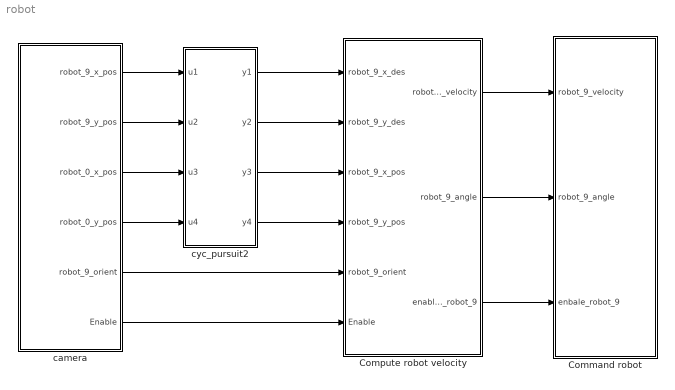
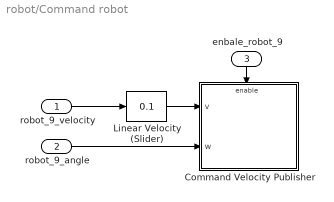
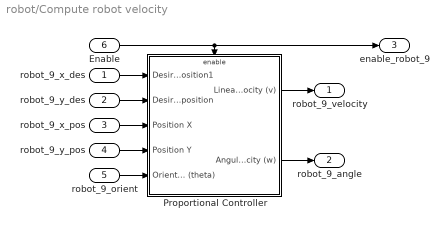
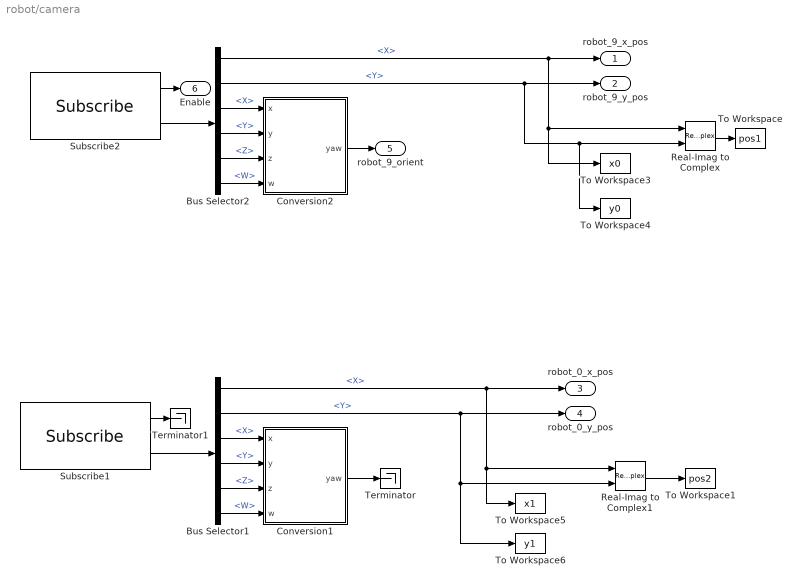
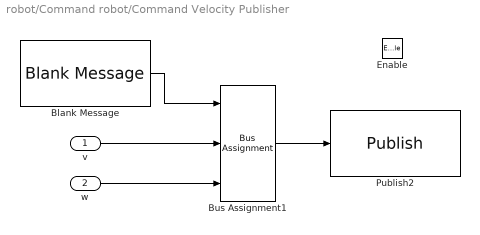
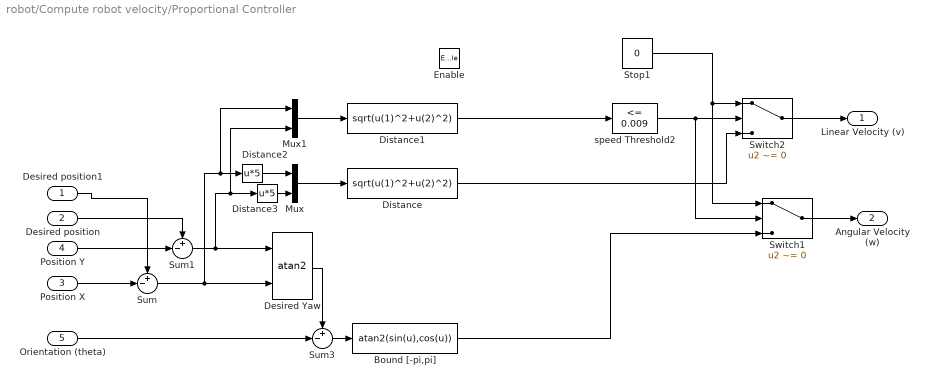
== matlab function robot/cyc_pursuit2 ==
function [y1, y2, y3, y4] = fcn(u1, u2, u3, u4)
%#codegen

y1 = ((1-0.2)*u1+(u3*0.2)+(1.5*0.2));
y2 = ((1-0.2)*u2+(0.2*u4)+(0*0.2));
y3=u1;
y4=u2;




%       y1 = ((1-0.2)*u1+(u3*0.2)+(1.5451*0.2));
%         y2 = ((1-0.2)*u2+(0.2*u4)+(4.7553*0.2));
%         y3 = ((1-0.2)*u3+(u5*0.2)-(4.0451*0.2));
%         y4 = ((1-0.2)*u4+(u6*0.2)+(2.9389*0.2));
%         y5 = ((1-0.2)*u5+(u7*0.2)-(4.0451*0.2));
%         y6 = ((1-0.2)*u6+(u8*0.2)-(2.9389*0.2));
%         y7 = ((1-0.2)*u7+(u9*0.2)+(1.5451*0.2));
%         y8 = ((1-0.2)*u8+(u10*0.2)-(4.7553*0.2));
%         y9 = ((1-0.2)*u9+(u1*0.2)+(5*0.2));
%         y10 = ((1-0.2)*u10+(u2*0.2)+(0*0.2));

== matlab function robot/camera/Conversion1 ==
function yaw  = quat2eul(x,y,z,w)
%#codegen

% Convert the quaternion to a yaw angle (zyx euler angle)
eul = quat2eul([w,x,y,z]);
yaw = eul(1);

end

== matlab function robot/camera/Conversion2 ==
function yaw  = quat2eul(x,y,z,w)
%#codegen

% Convert the quaternion to a yaw angle (zyx euler angle)
eul = quat2eul([w,x,y,z]);
yaw = eul(1);

end

//
// Academic License - for use in teaching, academic research, and meeting
// course requirements at degree granting institutions only.  Not for
// government, commercial, or other organizational use.
//
// File: robot.cpp
//
// Code generated for Simulink model 'robot'.
//
// Model version                  : 1.18
// Simulink Coder version         : 8.11 (R2016b) 25-Aug-2016
// C/C++ source code generated on : Wed Jan 25 17:09:00 2017
//
// Target selection: ert.tlc
// Embedded hardware selection: Generic->Unspecified (assume 32-bit Generic)
// Code generation objectives: Unspecified
// Validation result: Not run
//
#include "robot.h"
#include "robot_private.h"
#define robot_MessageQueueLen          (105)
#define robot_MessageQueueLen_h        (1)

real_T rt_atan2d_snf(real_T u0, real_T u1)
{
  real_T y;
  int32_T u0_0;
  int32_T u1_0;
  if (rtIsNaN(u0) || rtIsNaN(u1)) {
    y = (rtNaN);
  } else if (rtIsInf(u0) && rtIsInf(u1)) {
    if (u0 > 0.0) {
      u0_0 = 1;
    } else {
      u0_0 = -1;
    }

    if (u1 > 0.0) {
      u1_0 = 1;
    } else {
      u1_0 = -1;
    }

    y = atan2((real_T)u0_0, (real_T)u1_0);
  } else if (u1 == 0.0) {
    if (u0 > 0.0) {
      y = RT_PI / 2.0;
    } else if (u0 < 0.0) {
      y = -(RT_PI / 2.0);
    } else {
      y = 0.0;
    }
  } else {
    y = atan2(u0, u1);
  }

  return y;
}

//
// Output and update for atomic system:
//    '<S3>/Conversion1'
//    '<S3>/Conversion2'
//
void robot_Conversion1(real_T rtu_x, real_T rtu_y, real_T rtu_z, real_T rtu_w,
  B_Conversion1_robot_T *localB)
{
  real_T b_y;
  real_T q_idx_0;
  real_T q_idx_1;
  real_T q_idx_2;

  //  Convert the quaternion to a yaw angle (zyx euler angle)
  // MATLAB Function 'camera/Conversion1': '<S11>:1'
  // '<S11>:1:5' eul = quat2eul([w,x,y,z]);
  b_y = 1.0 / sqrt(((rtu_w * rtu_w + rtu_x * rtu_x) + rtu_y * rtu_y) + rtu_z *
                   rtu_z);
  q_idx_0 = rtu_w * b_y;
  q_idx_1 = rtu_x * b_y;
  q_idx_2 = rtu_y * b_y;
  b_y *= rtu_z;

  // '<S11>:1:6' yaw = eul(1);
  localB->yaw = rt_atan2d_snf((q_idx_1 * q_idx_2 + q_idx_0 * b_y) * 2.0,
    ((q_idx_0 * q_idx_0 + q_idx_1 * q_idx_1) - q_idx_2 * q_idx_2) - b_y * b_y);
}

real_T rt_powd_snf(real_T u0, real_T u1)
{
  real_T y;
  real_T tmp;
  real_T tmp_0;
  if (rtIsNaN(u0) || rtIsNaN(u1)) {
    y = (rtNaN);
  } else {
    tmp = fabs(u0);
    tmp_0 = fabs(u1);
    if (rtIsInf(u1)) {
      if (tmp == 1.0) {
        y = (rtNaN);
      } else if (tmp > 1.0) {
        if (u1 > 0.0) {
          y = (rtInf);
        } else {
          y = 0.0;
        }
      } else if (u1 > 0.0) {
        y = 0.0;
      } else {
        y = (rtInf);
      }
    } else if (tmp_0 == 0.0) {
      y = 1.0;
    } else if (tmp_0 == 1.0) {
      if (u1 > 0.0) {
        y = u0;
      } else {
        y = 1.0 / u0;
      }
    } else if (u1 == 2.0) {
      y = u0 * u0;
    } else if ((u1 == 0.5) && (u0 >= 0.0)) {
      y = sqrt(u0);
    } else if ((u0 < 0.0) && (u1 > floor(u1))) {
      y = (rtNaN);
    } else {
      y = pow(u0, u1);
    }
  }

  return y;
}

// Model step function
void robot_0ModelClass::step()
{
  boolean_T varargout_1;
  boolean_T varargout_1_0;

  // Outputs for Atomic SubSystem: '<S3>/Subscribe2'
  // Start for MATLABSystem: '<S14>/SourceBlock' incorporates:
  //   Inport: '<S16>/In1'
  //   MATLABSystem: '<S14>/SourceBlock'

  varargout_1 = Sub_robot_11.getLatestMessage(&robot_B.varargout_2);

  // Outputs for Enabled SubSystem: '<S14>/Enabled Subsystem' incorporates:
  //   EnablePort: '<S16>/Enable'

  if (varargout_1) {
    robot_B.In1 = robot_B.varargout_2;
  }

  // End of Outputs for SubSystem: '<S14>/Enabled Subsystem'
  // End of Outputs for SubSystem: '<S3>/Subscribe2'

  // Outputs for Atomic SubSystem: '<S3>/Subscribe1'
  // Start for MATLABSystem: '<S13>/SourceBlock' incorporates:
  //   Inport: '<S15>/In1'
  //   MATLABSystem: '<S13>/SourceBlock'

  varargout_1_0 = Sub_robot_10.getLatestMessage(&robot_B.varargout_2);

  // Outputs for Enabled SubSystem: '<S13>/Enabled Subsystem' incorporates:
  //   EnablePort: '<S15>/Enable'

  if (varargout_1_0) {
    robot_B.In1_d = robot_B.varargout_2;
  }

  // End of Start for MATLABSystem: '<S13>/SourceBlock'
  // End of Outputs for SubSystem: '<S13>/Enabled Subsystem'
  // End of Outputs for SubSystem: '<S3>/Subscribe1'

  // MATLAB Function: '<S3>/Conversion2'
  // MATLAB Function 'cyc_pursuit2': '<S4>:1'
  // '<S4>:1:4' y1 = ((1-0.2)*u1+(u3*0.2)+(1.5*0.2));
  // '<S4>:1:5' y2 = ((1-0.2)*u2+(0.2*u4)-(0*0.2));
  // '<S4>:1:6' y3=u1;
  // '<S4>:1:7' y4=u2;
  robot_Conversion1(robot_B.In1.Pose.Pose.Orientation.X,
                    robot_B.In1.Pose.Pose.Orientation.Y,
                    robot_B.In1.Pose.Pose.Orientation.Z,
                    robot_B.In1.Pose.Pose.Orientation.W, &robot_B.sf_Conversion2);

  // Outputs for Enabled SubSystem: '<S1>/Command Velocity Publisher' incorporates:
  //   EnablePort: '<S5>/Enable'

  // Outputs for Enabled SubSystem: '<S2>/Proportional Controller' incorporates:
  //   EnablePort: '<S9>/Enable'

  // Outputs for Atomic SubSystem: '<S3>/Subscribe2'
  // Start for MATLABSystem: '<S14>/SourceBlock' incorporates:
  //   MATLABSystem: '<S14>/SourceBlock'

  if (varargout_1) {
    // Sum: '<S9>/Sum1' incorporates:
    //   MATLAB Function: '<Root>/cyc_pursuit2'
    //   SignalConversion: '<S3>/SigConversion_InsertedFor_Bus Selector1_at_outport_1'
    //   SignalConversion: '<S3>/SigConversion_InsertedFor_Bus Selector2_at_outport_1'

    robot_B.Sum1 = (0.8 * robot_B.In1.Pose.Pose.Position.Y + 0.2 *
                    robot_B.In1_d.Pose.Pose.Position.Y) -
      robot_B.In1.Pose.Pose.Position.Y;

    // Sum: '<S9>/Sum' incorporates:
    //   MATLAB Function: '<Root>/cyc_pursuit2'
    //   SignalConversion: '<S3>/SigConversion_InsertedFor_Bus Selector1_at_outport_0'
    //   SignalConversion: '<S3>/SigConversion_InsertedFor_Bus Selector2_at_outport_0'

    robot_B.Sum = ((0.8 * robot_B.In1.Pose.Pose.Position.X +
                    robot_B.In1_d.Pose.Pose.Position.X * 0.2) +
                   0.30000000000000004) - robot_B.In1.Pose.Pose.Position.X;

    // Fcn: '<S9>/Distance1'
    robot_B.Sum3 = rt_powd_snf(robot_B.Sum, 2.0) + rt_powd_snf(robot_B.Sum1, 2.0);
    if (robot_B.Sum3 < 0.0) {
      robot_B.Sum3 = -sqrt(-robot_B.Sum3);
    } else {
      robot_B.Sum3 = sqrt(robot_B.Sum3);
    }

    // End of Fcn: '<S9>/Distance1'

    // Switch: '<S9>/Switch1' incorporates:
    //   Constant: '<S10>/Constant'
    //   Constant: '<S9>/Stop1'
    //   Fcn: '<S9>/Bound [-pi,pi]'
    //   RelationalOperator: '<S10>/Compare'
    //   Switch: '<S9>/Switch2'

    if (robot_B.Sum3 <= robot_P.speedThreshold2_const) {
      robot_B.Switch1 = robot_P.Stop1_Value;
      robot_B.Sum1 = robot_P.Stop1_Value;
    } else {
      // Sum: '<S9>/Sum3' incorporates:
      //   Trigonometry: '<S9>/Desired Yaw'

      robot_B.Sum3 = rt_atan2d_snf(robot_B.Sum1, robot_B.Sum) -
        robot_B.sf_Conversion2.yaw;
      robot_B.Switch1 = rt_atan2d_snf(sin(robot_B.Sum3), cos(robot_B.Sum3));

      // Fcn: '<S9>/Distance3' incorporates:
      //   Fcn: '<S9>/Bound [-pi,pi]'

      robot_B.Sum1 *= 5.0;

      // Fcn: '<S9>/Distance2'
      robot_B.Sum *= 5.0;

      // Fcn: '<S9>/Distance'
      robot_B.Sum3 = rt_powd_snf(robot_B.Sum, 2.0) + rt_powd_snf(robot_B.Sum1,
        2.0);
      if (robot_B.Sum3 < 0.0) {
        robot_B.Sum1 = -sqrt(-robot_B.Sum3);
      } else {
        robot_B.Sum1 = sqrt(robot_B.Sum3);
      }

      // End of Fcn: '<S9>/Distance'
    }

    // End of Switch: '<S9>/Switch1'

    // BusAssignment: '<S5>/Bus Assignment1' incorporates:
    //   Constant: '<S7>/Constant'
    //   Gain: '<S6>/Slider Gain'

    robot_B.BusAssignment1 = robot_P.Constant_Value_p;
    robot_B.BusAssignment1.Linear.X = robot_P.LinearVelocitySlider_gain *
      robot_B.Sum1;
    robot_B.BusAssignment1.Angular.Z = robot_B.Switch1;

    // Outputs for Atomic SubSystem: '<S5>/Publish2'
    // Start for MATLABSystem: '<S8>/SinkBlock' incorporates:
    //   MATLABSystem: '<S8>/SinkBlock'

    Pub_robot_75.publish(&robot_B.BusAssignment1);

    // End of Outputs for SubSystem: '<S5>/Publish2'
  }

  // End of Outputs for SubSystem: '<S3>/Subscribe2'
  // End of Outputs for SubSystem: '<S2>/Proportional Controller'
  // End of Outputs for SubSystem: '<S1>/Command Velocity Publisher'

  // MATLAB Function: '<S3>/Conversion1'
  robot_Conversion1(robot_B.In1_d.Pose.Pose.Orientation.X,
                    robot_B.In1_d.Pose.Pose.Orientation.Y,
                    robot_B.In1_d.Pose.Pose.Orientation.Z,
                    robot_B.In1_d.Pose.Pose.Orientation.W,
                    &robot_B.sf_Conversion1);
}
